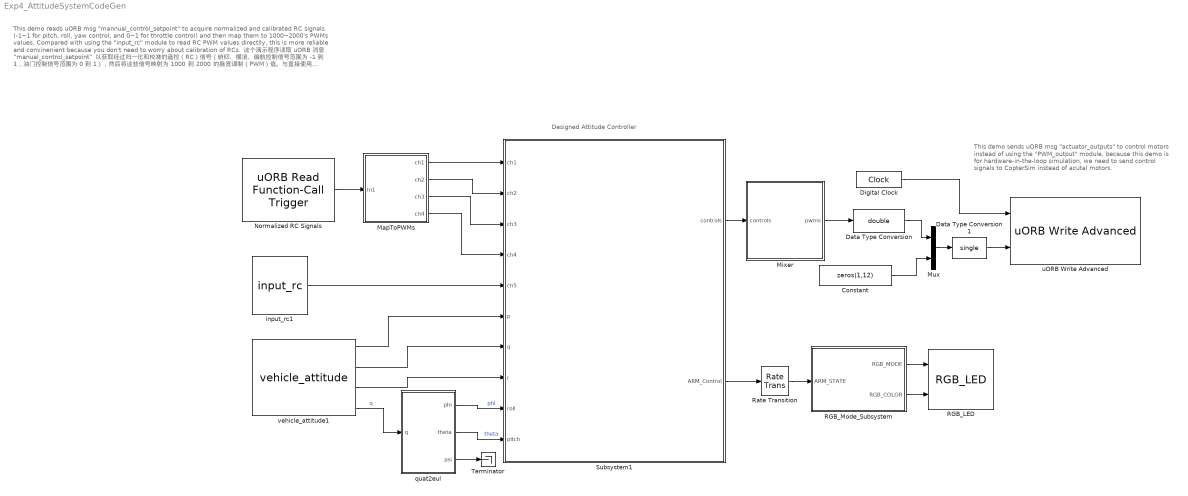
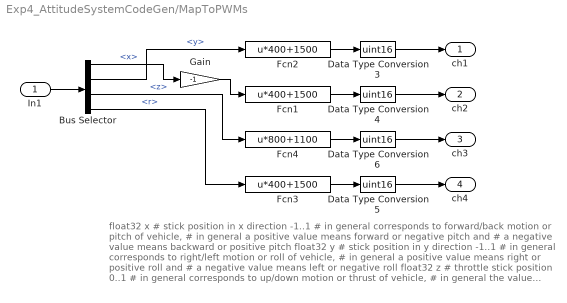
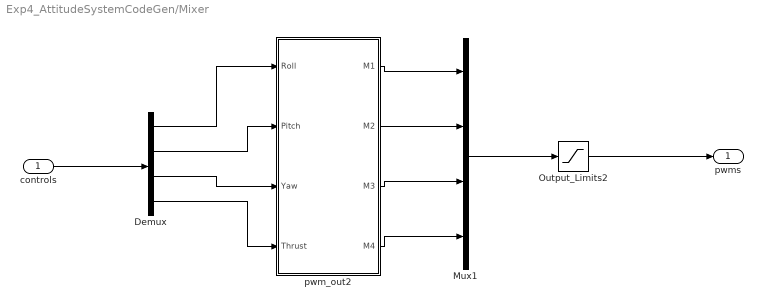
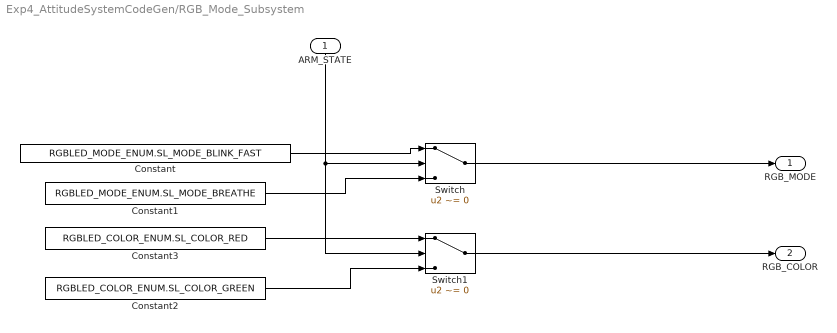
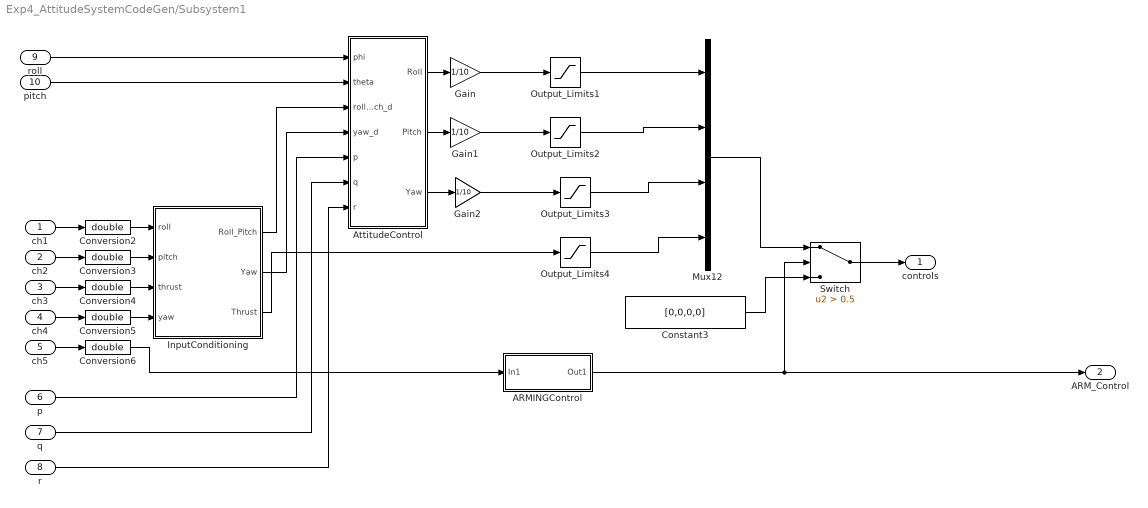
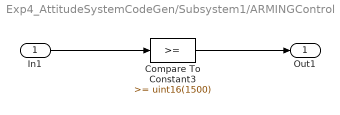
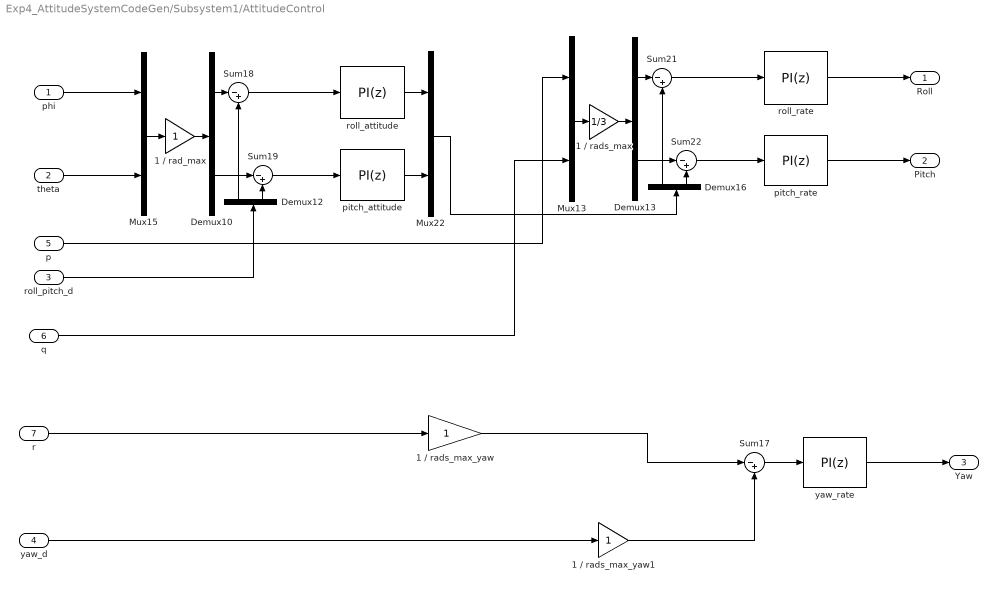
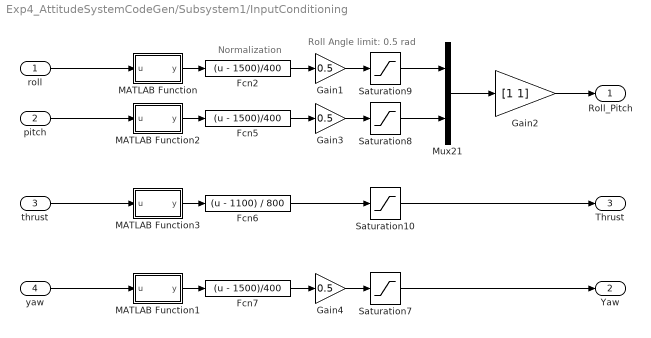
== matlab function Exp4_AttitudeSystemCodeGen/Mixer/pwm_out2 ==
function [M1, M2, M3, M4] = motor_mixer(Roll, Pitch, Yaw, Thrust)

idle_PWM = 1000;

% Quad XROLL （根据QP里面的叉字形结构的文字）
% M1 = ((Pitch+ Yaw)+Thrust-Roll) * 1000 + idle_PWM;
 %M2 = ((Pitch - Yaw)+Thrust+Roll) * 1000 + idle_PWM;
 %M3 = ((Roll +Yaw) + Thrust-Pitch) * 1000 + idle_PWM;
 %M4 = ((-Roll - Pitch-Yaw) + Thrust) * 1000 + idle_PWM;
% M5 = 1000;
% M6 = 1000;
% M7 = 1000;
% M8 = 1000;
%qp上实际的输出
M1 = (Thrust+Pitch-Roll+Yaw) * 1000 + idle_PWM;
 M2 = (Thrust-Pitch +Roll+Yaw) * 1000 + idle_PWM;
 M3 = ( Thrust+Roll+Pitch-Yaw) * 1000 + idle_PWM;
 M4 = (Thrust-Roll- Pitch -Yaw) * 1000 + idle_PWM;
% Quad +
 %M1 = ((Pitch - Yaw) * Thrust / 2 + Thrust) * 1000 + idle_PWM;
 %M2 = ((-Roll + Yaw) * Thrust / 2 + Thrust) * 1000 + idle_PWM;
% M3 = ((-Pitch - Yaw) * Thrust / 2 + Thrust) * 1000 + idle_PWM;
 %M4 = ((Roll + Yaw) * Thrust / 2 + Thrust) * 1000 + idle_PWM;
% M5 = 1000;
% M6 = 1000;
% M7 = 1000;
% M8 = 1000;

% Hex X
% M1 = ((Pitch + Roll / 2 - Yaw) * Thrust / 2 + Thrust) * 1000 + idle_PWM;
% M2 = ((Pitch - Roll / 2 + Yaw) * Thrust / 2 + Thrust) * 1000 + idle_PWM;
% M3 = ((-Roll - Yaw) * Thrust / 2 + Thrust) * 1000 + idle_PWM;
% M4 = ((-Pitch - Roll / 2 + Yaw) * Thrust / 2 + Thrust) * 1000 + idle_PWM;
% M5 = ((-Pitch + Roll / 2 - Yaw) * Thrust / 2 + Thrust) * 1000 + idle_PWM;
% M6 = ((Roll + Yaw) * Thrust / 2 + Thrust) * 1000 + idle_PWM;
% M7 = 1000;
% M8 = 1000;

% Hex X (From Adam)
%M1 = uint16(single(((-Roll - Yaw) * Thrust / 3 + Thrust) * single(1000))) + idle_PWM;
%M2 = uint16(single(((Roll + Yaw) * Thrust / 3 + Thrust) * single(1000))) + idle_PWM;
%M3 = uint16(single(((Pitch + (Roll / 2) - Yaw) * Thrust / 3 + Thrust) * single(1000))) + idle_PWM;
%M4 = uint16(single(((-Pitch - (Roll / 2) + Yaw) * Thrust / 3 + Thrust) * single(1000))) + idle_PWM;
%M5 = uint16(single(((Pitch - (Roll / 2) + Yaw) * Thrust / 3 + Thrust) * single(1000))) + idle_PWM;
%M6 = uint16(single(((-Pitch + (Roll / 2) - Yaw) * Thrust / 3 + Thrust) * single(1000))) + idle_PWM;

% Hex X (Version 2)
% Roll/Yaw
% M1 = ((-Roll - Yaw) * Thrust / 2 + Thrust) * 1000 + idle_PWM;
% M2 = ((Roll + Yaw) * Thrust / 2 + Thrust) * 1000 + idle_PWM;
% % + Pitch/Roll
% M6 = ((Pitch + Roll / 2 - Yaw) * Thrust / 2 + Thrust) * 1000 + idle_PWM;
% M4 = ((Pitch - Roll / 2 + Yaw) * Thrust / 2 + Thrust) * 1000 + idle_PWM;
% % - Pitch/Roll
% M5 = ((-Pitch - Roll / 2 + Yaw) * Thrust / 2 + Thrust) * 1000 + idle_PWM;
% M3 = ((-Pitch + Roll / 2 - Yaw) * Thrust / 2 + Thrust) * 1000 + idle_PWM;

== matlab function Exp4_AttitudeSystemCodeGen/Subsystem1/InputConditioning/MATLAB Function ==
function y = fcn(u)
%将遥控输入的范围控制在1100~1900，同时设置一个死区，死区大小为±deadZone
RCMin = 1100;
RCMax = 1900;
deadZoneRate = 0.05;
deadZone = deadZoneRate*(RCMax-RCMin);
%限幅
if(u < RCMin)
    u = RCMin;
elseif(u > RCMax)
    u = RCMax;
end
%死区
 if(u > 1500+deadZone)
    y = u;
 elseif(u < 1500-deadZone)
     y = u;
 else
     y = 1500;
 end
     
 end

== matlab function Exp4_AttitudeSystemCodeGen/Subsystem1/InputConditioning/MATLAB Function1 ==
function y = fcn(u)
%将遥控输入的范围控制在1100~1900，同时设置一个死区，死区大小为±deadZone
RCMin = 1100;
RCMax = 1900;
deadZoneRate = 0.05;
deadZone = deadZoneRate*(RCMax-RCMin);
%限幅
if(u < RCMin)
    u = RCMin;
elseif(u > RCMax)
    u = RCMax;
end
%死区
 if(u > 1500+deadZone)
    y = u;
 elseif(u < 1500-deadZone)
     y = u;
 else
     y = 1500;
 end
     
 end

== matlab function Exp4_AttitudeSystemCodeGen/Subsystem1/InputConditioning/MATLAB Function2 ==
function y = fcn(u)
%将遥控输入的范围控制在1100~1900，同时设置一个死区，死区大小为±deadZone
RCMin = 1100;
RCMax = 1900;
deadZoneRate = 0.05;
deadZone = deadZoneRate*(RCMax-RCMin);
%限幅
if(u < RCMin)
    u = RCMin;
elseif(u > RCMax)
    u = RCMax;
end
%死区
 if(u > 1500+deadZone)
    y = u;
 elseif(u < 1500-deadZone)
     y = u;
 else
     y = 1500;
 end
     
 end

== matlab function Exp4_AttitudeSystemCodeGen/Subsystem1/InputConditioning/MATLAB Function3 ==
function y = fcn(u)
%将遥控输入的范围控制在1100~1900，同时设置一个死区，死区大小为±deadZone
RCMin = 1100;
RCMax = 1900;
deadZoneRate = 0.05;
deadZone = deadZoneRate*(RCMax-RCMin);
%限幅
if(u < RCMin)
    u = RCMin;
elseif(u > RCMax)
    u = RCMax;
end
%死区
 if(u > 1500+deadZone)
    y = u;
 elseif(u < 1500-deadZone)
     y = u;
 else
     y = 1500;
 end
     
 end

== matlab function Exp4_AttitudeSystemCodeGen/quat2eul ==
function [phi,theta,psi] = quat2eul(q)
% Conversion from Quaternion to Euler angles based on the PX4 Firmware
% v1.6.5 release.
% 
% Quaternion -> DCM -> Euler Angles
% INPUT:
%   q: Quaternion vector of the format: (a + bi + cj + dk)
% OUTPUT:
%   [phi,theta,psi]: Euler angles in radians.
% 
 
    a = q(1);
    b = q(2);
    c = q(3);
    d = q(4);

    aSq = a*a;
    bSq = b*b;
    cSq = c*c;
    dSq = d*d;

    d_pi2 = pi/2;

    % quaternion_to_dcm
    dcm00 = aSq + bSq - cSq - dSq;
    % dcm01 = 2*(b*c - a*d);
    dcm02 = 2*(a*c + b*d);
    dcm10 = 2*(b*c + a*d);
    % dcm11 = aSq - bSq + cSq - dSq;
    dcm12 = 2*(c*d - a*b);
    dcm20 = 2*(b*d - a*c);
    dcm21 = 2*(a*b + c*d);
    dcm22 = aSq - bSq - cSq + dSq;

    % dcm_to_euler
    theta = asin(-dcm20);
    if abs(theta - d_pi2) < 1.0e-3
        phi = single(0.0);
        psi = atan2(dcm12, dcm02);
    elseif abs(theta + d_pi2) < 1.0e-3
        phi = single(0.0);
        psi = atan2(-dcm12, -dcm02);
    else
        phi = atan2(dcm21, dcm22);
        psi = atan2(dcm10, dcm00);
    end

end

/*
 * File: Exp4_AttitudeSystemCodeGen.c
 *
 * Code generated for Simulink model 'Exp4_AttitudeSystemCodeGen'.
 *
 * Model version                  : 10.0
 * Simulink Coder version         : 9.7 (R2022a) 13-Nov-2021
 * C/C++ source code generated on : Thu Jan 23 10:38:07 2025
 *
 * Target selection: ert.tlc
 * Embedded hardware selection: ARM Compatible->ARM Cortex
 * Code generation objectives: Unspecified
 * Validation result: Not run
 */

#include "Exp4_AttitudeSystemCodeGen.h"
#include "rtwtypes.h"
#include "Exp4_AttitudeSystemCodeGen_private.h"
#include <math.h>
#include "rt_nonfinite.h"
#include "Exp4_AttitudeSystemCodeGen_types.h"
#include "rt_defines.h"

/* Block signals (default storage) */
B_Exp4_AttitudeSystemCodeGen_T Exp4_AttitudeSystemCodeGen_B;

/* Block states (default storage) */
DW_Exp4_AttitudeSystemCodeGen_T Exp4_AttitudeSystemCodeGen_DW;

/* Real-time model */
static RT_MODEL_Exp4_AttitudeSystemC_T Exp4_AttitudeSystemCodeGen_M_;
RT_MODEL_Exp4_AttitudeSystemC_T *const Exp4_AttitudeSystemCodeGen_M =
  &Exp4_AttitudeSystemCodeGen_M_;
static void rate_scheduler(void);

/*
 *         This function updates active task flag for each subrate.
 *         The function is called at model base rate, hence the
 *         generated code self-manages all its subrates.
 */
static void rate_scheduler(void)
{
  /* Compute which subrates run during the next base time step.  Subrates
   * are an integer multiple of the base rate counter.  Therefore, the subtask
   * counter is reset when it reaches its limit (zero means run).
   */
  (Exp4_AttitudeSystemCodeGen_M->Timing.TaskCounters.TID[1])++;
  if ((Exp4_AttitudeSystemCodeGen_M->Timing.TaskCounters.TID[1]) > 249) {/* Sample time: [1.0s, 0.0s] */
    Exp4_AttitudeSystemCodeGen_M->Timing.TaskCounters.TID[1] = 0;
  }
}

/*
 * Output and update for atomic system:
 *    '<S9>/MATLAB Function1'
 *    '<S9>/MATLAB Function2'
 *    '<S9>/MATLAB Function3'
 */
void Exp4_AttitudeSy_MATLABFunction1(real_T rtu_u,
  B_MATLABFunction1_Exp4_Attitu_T *localB)
{
  real_T u;
  u = rtu_u;

  /* MATLAB Function 'Subsystem1/InputConditioning/MATLAB Function1': '<S257>:1' */
  /* '<S257>:1:3' */
  /* '<S257>:1:4' */
  /* '<S257>:1:5' */
  /* '<S257>:1:6' */
  if (rtu_u < 1100.0) {
    /* '<S257>:1:8' */
    /* '<S257>:1:9' */
    u = 1100.0;
  } else if (rtu_u > 1900.0) {
    /* '<S257>:1:10' */
    /* '<S257>:1:11' */
    u = 1900.0;
  }

  if (u > 1540.0) {
    /* '<S257>:1:14' */
    /* '<S257>:1:15' */
    localB->y = u;
  } else if (u < 1460.0) {
    /* '<S257>:1:16' */
    /* '<S257>:1:17' */
    localB->y = u;
  } else {
    /* '<S257>:1:19' */
    localB->y = 1500.0;
  }
}

real32_T rt_atan2f_snf(real32_T u0, real32_T u1)
{
  int32_T u0_0;
  int32_T u1_0;
  real32_T y;
  if (rtIsNaNF(u0) || rtIsNaNF(u1)) {
    y = (rtNaNF);
  } else if (rtIsInfF(u0) && rtIsInfF(u1)) {
    if (u0 > 0.0F) {
      u0_0 = 1;
    } else {
      u0_0 = -1;
    }

    if (u1 > 0.0F) {
      u1_0 = 1;
    } else {
      u1_0 = -1;
    }

    y = (real32_T)atan2((real32_T)u0_0, (real32_T)u1_0);
  } else if (u1 == 0.0F) {
    if (u0 > 0.0F) {
      y = RT_PIF / 2.0F;
    } else if (u0 < 0.0F) {
      y = -(RT_PIF / 2.0F);
    } else {
      y = 0.0F;
    }
  } else {
    y = (real32_T)atan2(u0, u1);
  }

  return y;
}

/* Model step function */
void Exp4_AttitudeSystemCodeGen_step(void)
{
  real_T rtb_Switch_idx_2;
  real_T rtb_Switch_idx_3;
  real_T u0;
  int32_T i;
  real32_T rtb_phi;
  real32_T theta;
  real32_T tmp;
  uint16_T rtb_DataTypeConversion6;
  boolean_T rtb_Compare;

  /* S-Function (sfun_px4_input_rc): '<Root>/input_rc1' */
  {
    bool updated;
    orb_check(Exp4_AttitudeSystemCodeGen_DW.input_rc1_input_rc_fd.fd, &updated);
    if (updated) {
      struct input_rc_s pwm_inputs;

      /* copy input_rc raw data into local buffer (uint16)*/
      orb_copy(ORB_ID(input_rc),
               Exp4_AttitudeSystemCodeGen_DW.input_rc1_input_rc_fd.fd,
               &pwm_inputs);
      Exp4_AttitudeSystemCodeGen_B.input_rc1 = pwm_inputs.values[4];
    }
  }

  /* RelationalOperator: '<S10>/Compare' incorporates:
   *  Constant: '<S10>/Constant'
   *  DataTypeConversion: '<S4>/Conversion6'
   */
  rtb_Compare = (Exp4_AttitudeSystemCodeGen_B.input_rc1 >= 1500);

  /* RateTransition: '<Root>/Rate Transition' */
  if (Exp4_AttitudeSystemCodeGen_M->Timing.TaskCounters.TID[1] == 0) {
    /* Switch: '<S3>/Switch' incorporates:
     *  Switch: '<S3>/Switch1'
     */
    if (rtb_Compare) {
      /* Switch: '<S3>/Switch' incorporates:
       *  Constant: '<S3>/Constant'
       */
      Exp4_AttitudeSystemCodeGen_B.Switch = SL_MODE_BLINK_FAST;

      /* Switch: '<S3>/Switch1' incorporates:
       *  Constant: '<S3>/Constant3'
       */
      Exp4_AttitudeSystemCodeGen_B.Switch1 = SL_COLOR_RED;
    } else {
      /* Switch: '<S3>/Switch' incorporates:
       *  Constant: '<S3>/Constant1'
       */
      Exp4_AttitudeSystemCodeGen_B.Switch = SL_MODE_BREATHE;

      /* Switch: '<S3>/Switch1' incorporates:
       *  Constant: '<S3>/Constant2'
       */
      Exp4_AttitudeSystemCodeGen_B.Switch1 = SL_COLOR_GREEN;
    }

    /* End of Switch: '<S3>/Switch' */

    /* S-Function (sfun_px4_rgbled): '<Root>/RGB_LED' */
    Exp4_AttitudeSystemCodeGen_DW.RGB_LED_sl_led_control_s.mode =
      Exp4_AttitudeSystemCodeGen_B.Switch;
    Exp4_AttitudeSystemCodeGen_DW.RGB_LED_sl_led_control_s.color =
      Exp4_AttitudeSystemCodeGen_B.Switch1;
    Exp4_AttitudeSystemCodeGen_DW.RGB_LED_sl_led_control_s.num_blinks = 0;
    Exp4_AttitudeSystemCodeGen_DW.RGB_LED_sl_led_control_s.priority = 0;
    Exp4_AttitudeSystemCodeGen_DW.RGB_LED_sl_led_control_s.timestamp =
      hrt_absolute_time();
    orb_publish(ORB_ID(led_control),
                Exp4_AttitudeSystemCodeGen_DW.RGB_LED_orb_advert_t ,
                &Exp4_AttitudeSystemCodeGen_DW.RGB_LED_sl_led_control_s);
  }

  /* End of RateTransition: '<Root>/Rate Transition' */

  /* S-Function (sfun_px4_uorb_write): '<Root>/uORB Write Advanced' */
  {
    //struct actuator_outputs_s InputStruct;
    //memset( &InputStruct, 0, sizeof(InputStruct));

    /* assign input parameters to struct */
    Exp4_AttitudeSystemCodeGen_DW.uORBWriteAdvanced_uorb_msg.timestamp = (double)
      Exp4_AttitudeSystemCodeGen_B.DigitalClock;
    Exp4_AttitudeSystemCodeGen_DW.uORBWriteAdvanced_uorb_msg.output[0] =
      Exp4_AttitudeSystemCodeGen_B.DataTypeConversion1[0];
    Exp4_AttitudeSystemCodeGen_DW.uORBWriteAdvanced_uorb_msg.output[1] =
      Exp4_AttitudeSystemCodeGen_B.DataTypeConversion1[1];
    Exp4_AttitudeSystemCodeGen_DW.uORBWriteAdvanced_uorb_msg.output[2] =
      Exp4_AttitudeSystemCodeGen_B.DataTypeConversion1[2];
    Exp4_AttitudeSystemCodeGen_DW.uORBWriteAdvanced_uorb_msg.output[3] =
      Exp4_AttitudeSystemCodeGen_B.DataTypeConversion1[3];
    Exp4_AttitudeSystemCodeGen_DW.uORBWriteAdvanced_uorb_msg.output[4] =
      Exp4_AttitudeSystemCodeGen_B.DataTypeConversion1[4];
    Exp4_AttitudeSystemCodeGen_DW.uORBWriteAdvanced_uorb_msg.output[5] =
      Exp4_AttitudeSystemCodeGen_B.DataTypeConversion1[5];
    Exp4_AttitudeSystemCodeGen_DW.uORBWriteAdvanced_uorb_msg.output[6] =
      Exp4_AttitudeSystemCodeGen_B.DataTypeConversion1[6];
    Exp4_AttitudeSystemCodeGen_DW.uORBWriteAdvanced_uorb_msg.output[7] =
      Exp4_AttitudeSystemCodeGen_B.DataTypeConversion1[7];
    Exp4_AttitudeSystemCodeGen_DW.uORBWriteAdvanced_uorb_msg.output[8] =
      Exp4_AttitudeSystemCodeGen_B.DataTypeConversion1[8];
    Exp4_AttitudeSystemCodeGen_DW.uORBWriteAdvanced_uorb_msg.output[9] =
      Exp4_AttitudeSystemCodeGen_B.DataTypeConversion1[9];
    Exp4_AttitudeSystemCodeGen_DW.uORBWriteAdvanced_uorb_msg.output[10] =
      Exp4_AttitudeSystemCodeGen_B.DataTypeConversion1[10];
    Exp4_AttitudeSystemCodeGen_DW.uORBWriteAdvanced_uorb_msg.output[11] =
      Exp4_AttitudeSystemCodeGen_B.DataTypeConversion1[11];
    Exp4_AttitudeSystemCodeGen_DW.uORBWriteAdvanced_uorb_msg.output[12] =
      Exp4_AttitudeSystemCodeGen_B.DataTypeConversion1[12];
    Exp4_AttitudeSystemCodeGen_DW.uORBWriteAdvanced_uorb_msg.output[13] =
      Exp4_AttitudeSystemCodeGen_B.DataTypeConversion1[13];
    Exp4_AttitudeSystemCodeGen_DW.uORBWriteAdvanced_uorb_msg.output[14] =
      Exp4_AttitudeSystemCodeGen_B.DataTypeConversion1[14];
    Exp4_AttitudeSystemCodeGen_DW.uORBWriteAdvanced_uorb_msg.output[15] =
      Exp4_AttitudeSystemCodeGen_B.DataTypeConversion1[15];

    /* Publish data for subscribers */
    orb_publish(ORB_ID(actuator_outputs_rfly),
                Exp4_AttitudeSystemCodeGen_DW.uORBWriteAdvanced_uorb_advert,
                &Exp4_AttitudeSystemCodeGen_DW.uORBWriteAdvanced_uorb_msg);
  }

  /* S-Function (sfun_px4_vehicle_attitude): '<Root>/vehicle_attitude1' */
  {
    bool updated;
    orb_check(Exp4_AttitudeSystemCodeGen_DW.vehicle_attitude1_angrad_fd.fd,
              &updated);
    if (updated) {
      struct vehicle_angular_velocity_s raw;
      orb_copy(ORB_ID(vehicle_angular_velocity),
               Exp4_AttitudeSystemCodeGen_DW.vehicle_attitude1_angrad_fd.fd,
               &raw);

      /* read out the Roll rate value */
      Exp4_AttitudeSystemCodeGen_B.vehicle_attitude1_o1 = raw.xyz[0];// phi rate

      /* read out the Pitch rate value */
      Exp4_AttitudeSystemCodeGen_B.vehicle_attitude1_o2 = raw.xyz[1];// theta rate

      /* read out the Yaw rate value */
      Exp4_AttitudeSystemCodeGen_B.vehicle_attitude1_o3 = raw.xyz[2];// psi rate
    }

    orb_check(Exp4_AttitudeSystemCodeGen_DW.vehicle_attitude1_angeuler_fd.fd,
              &updated);
    if (updated) {
      struct vehicle_attitude_s raw;
      orb_copy(ORB_ID(vehicle_attitude),
               Exp4_AttitudeSystemCodeGen_DW.vehicle_attitude1_angeuler_fd.fd,
               &raw);

      /* read out the Quaternion values */
      Exp4_AttitudeSystemCodeGen_B.q[0] = raw.q[0];
      Exp4_AttitudeSystemCodeGen_B.q[1] = raw.q[1];
      Exp4_AttitudeSystemCodeGen_B.q[2] = raw.q[2];
      Exp4_AttitudeSystemCodeGen_B.q[3] = raw.q[3];
    }
  }

  /* MATLAB Function: '<Root>/quat2eul' */
  /* MATLAB Function 'quat2eul': '<S5>:1' */
  /* '<S5>:1:12' */
  /* '<S5>:1:13' */
  /* '<S5>:1:14' */
  /* '<S5>:1:15' */
  /* '<S5>:1:17' */
  /* '<S5>:1:18' */
  /* '<S5>:1:19' */
  /* '<S5>:1:20' */
  /* '<S5>:1:22' */
  /* '<S5>:1:25' */
  /* '<S5>:1:27' */
  /* '<S5>:1:28' */
  /* '<S5>:1:30' */
  /* '<S5>:1:31' */
  /* '<S5>:1:32' */
  /* '<S5>:1:33' */
  /* '<S5>:1:36' */
  theta = (real32_T)asin(-((Exp4_AttitudeSystemCodeGen_B.q[1] *
    Exp4_AttitudeSystemCodeGen_B.q[3] - Exp4_AttitudeSystemCodeGen_B.q[0] *
    Exp4_AttitudeSystemCodeGen_B.q[2]) * 2.0F));
  if ((real32_T)fabs(theta - 1.57079637F) < 0.001) {
    /* '<S5>:1:37' */
    /* '<S5>:1:38' */
    rtb_phi = 0.0F;

    /* '<S5>:1:39' */
  } else if ((real32_T)fabs(theta + 1.57079637F) < 0.001) {
    /* '<S5>:1:40' */
    /* '<S5>:1:41' */
    rtb_phi = 0.0F;

    /* '<S5>:1:42' */
  } else {
    /* '<S5>:1:44' */
    rtb_phi = rt_atan2f_snf((Exp4_AttitudeSystemCodeGen_B.q[0] *
      Exp4_AttitudeSystemCodeGen_B.q[1] + Exp4_AttitudeSystemCodeGen_B.q[2] *
      Exp4_AttitudeSystemCodeGen_B.q[3]) * 2.0F,
      ((Exp4_AttitudeSystemCodeGen_B.q[0] * Exp4_AttitudeSystemCodeGen_B.q[0] -
        Exp4_AttitudeSystemCodeGen_B.q[1] * Exp4_AttitudeSystemCodeGen_B.q[1]) -
       Exp4_AttitudeSystemCodeGen_B.q[2] * Exp4_AttitudeSystemCodeGen_B.q[2]) +
      Exp4_AttitudeSystemCodeGen_B.q[3] * Exp4_AttitudeSystemCodeGen_B.q[3]);

    /* '<S5>:1:45' */
  }

  /* S-Function (sfun_px4_uorb_read_topic): '<Root>/Normalized RC Signals' */
  {
    //interval val: 1
    bool updated;
    orb_check(Exp4_AttitudeSystemCodeGen_DW.NormalizedRCSignals_uORB_fd.fd,
              &updated);
    if (updated) {
      /* obtained uorb data */
      /* copy sensors raw data into local buffer */
      orb_copy(ORB_ID(manual_control_setpoint),
               Exp4_AttitudeSystemCodeGen_DW.NormalizedRCSignals_uORB_fd.fd,
               &Exp4_AttitudeSystemCodeGen_B.NormalizedRCSignals);
    }
  }

  /* DataTypeConversion: '<S1>/Data Type Conversion3' incorporates:
   *  Fcn: '<S1>/Fcn2'
   */
  tmp = (real32_T)floor(Exp4_AttitudeSystemCodeGen_B.NormalizedRCSignals.y *
                        400.0F + 1500.0F);
  if (rtIsNaNF(tmp) || rtIsInfF(tmp)) {
    tmp = 0.0F;
  } else {
    tmp = (real32_T)fmod(tmp, 65536.0);
  }

  rtb_DataTypeConversion6 = (uint16_T)(tmp < 0.0F ? (int32_T)(uint16_T)-(int16_T)
    (uint16_T)-tmp : (int32_T)(uint16_T)tmp);

  /* End of DataTypeConversion: '<S1>/Data Type Conversion3' */

  /* MATLAB Function: '<S9>/MATLAB Function' incorporates:
   *  DataTypeConversion: '<S4>/Conversion2'
   */
  Exp4_AttitudeSystemCodeGen_B.y = rtb_DataTypeConversion6;

  /* MATLAB Function 'Subsystem1/InputConditioning/MATLAB Function': '<S256>:1' */
  /* '<S256>:1:3' */
  /* '<S256>:1:4' */
  /* '<S256>:1:5' */
  /* '<S256>:1:6' */
  if (rtb_DataTypeConversion6 < 1100) {
    /* '<S256>:1:8' */
    /* '<S256>:1:9' */
    Exp4_AttitudeSystemCodeGen_B.y = 1100.0;
  } else if (rtb_DataTypeConversion6 > 1900) {
    /* '<S256>:1:10' */
    /* '<S256>:1:11' */
    Exp4_AttitudeSystemCodeGen_B.y = 1900.0;
  }

  if ((!(Exp4_AttitudeSystemCodeGen_B.y > 1540.0)) &&
      (!(Exp4_AttitudeSystemCodeGen_B.y < 1460.0))) {
    /* '<S256>:1:19' */
    Exp4_AttitudeSystemCodeGen_B.y = 1500.0;
  } else {
    /* '<S256>:1:14' */
    /* '<S256>:1:15' */
    /* '<S256>:1:16' */
    /* '<S256>:1:17' */
  }

  /* End of MATLAB Function: '<S9>/MATLAB Function' */

  /* Gain: '<S9>/Gain1' incorporates:
   *  Fcn: '<S9>/Fcn2'
   */
  u0 = (Exp4_AttitudeSystemCodeGen_B.y - 1500.0) / 400.0 * 0.5;

  /* Saturate: '<S9>/Saturation9' */
  if (u0 > 1.0) {
    u0 = 1.0;
  } else if (u0 < -1.0) {
    u0 = -1.0;
  }

  /* End of Saturate: '<S9>/Saturation9' */

  /* Sum: '<S8>/Sum18' */
  Exp4_AttitudeSystemCodeGen_B.y = u0 - rtb_phi;

  /* Sum: '<S152>/Sum' incorporates:
   *  DiscreteIntegrator: '<S143>/Integrator'
   *  Gain: '<S148>/Proportional Gain'
   */
  Exp4_AttitudeSystemCodeGen_B.Sum = 0.5251155209314009 *
    Exp4_AttitudeSystemCodeGen_B.y +
    Exp4_AttitudeSystemCodeGen_DW.Integrator_DSTATE;

  /* Saturate: '<S150>/Saturation' */
  if (Exp4_AttitudeSystemCodeGen_B.Sum > 1.0) {
    Exp4_AttitudeSystemCodeGen_B.Saturation_o = 1.0;
  } else if (Exp4_AttitudeSystemCodeGen_B.Sum < -1.0) {
    Exp4_AttitudeSystemCodeGen_B.Saturation_o = -1.0;
  } else {
    Exp4_AttitudeSystemCodeGen_B.Saturation_o = Exp4_AttitudeSystemCodeGen_B.Sum;
  }

  /* End of Saturate: '<S150>/Saturation' */

  /* Sum: '<S8>/Sum21' incorporates:
   *  Gain: '<S8>/1 // rads_max'
   */
  Exp4_AttitudeSystemCodeGen_B.Sum21 = Exp4_AttitudeSystemCodeGen_B.Saturation_o
    - 0.333333343F * Exp4_AttitudeSystemCodeGen_B.vehicle_attitude1_o1;

  /* Sum: '<S200>/Sum' incorporates:
   *  DiscreteIntegrator: '<S191>/Integrator'
   *  Gain: '<S196>/Proportional Gain'
   */
  Exp4_AttitudeSystemCodeGen_B.Sum_n = 1.0961153046948584 *
    Exp4_AttitudeSystemCodeGen_B.Sum21 +
    Exp4_AttitudeSystemCodeGen_DW.Integrator_DSTATE_d;

  /* Saturate: '<S198>/Saturation' */
  if (Exp4_AttitudeSystemCodeGen_B.Sum_n > 1.0) {
    Exp4_AttitudeSystemCodeGen_B.Saturation = 1.0;
  } else if (Exp4_AttitudeSystemCodeGen_B.Sum_n < -1.0) {
    Exp4_AttitudeSystemCodeGen_B.Saturation = -1.0;
  } else {
    Exp4_AttitudeSystemCodeGen_B.Saturation = Exp4_AttitudeSystemCodeGen_B.Sum_n;
  }

  /* End of Saturate: '<S198>/Saturation' */

  /* DataTypeConversion: '<S1>/Data Type Conversion4' incorporates:
   *  Fcn: '<S1>/Fcn1'
   *  Gain: '<S1>/Gain'
   */
  tmp = (real32_T)floor(-Exp4_AttitudeSystemCodeGen_B.NormalizedRCSignals.x *
                        400.0F + 1500.0F);
  if (rtIsNaNF(tmp) || rtIsInfF(tmp)) {
    tmp = 0.0F;
  } else {
    tmp = (real32_T)fmod(tmp, 65536.0);
  }

  /* MATLAB Function: '<S9>/MATLAB Function2' incorporates:
   *  DataTypeConversion: '<S1>/Data Type Conversion4'
   *  DataTypeConversion: '<S4>/Conversion3'
   */
  Exp4_AttitudeSy_MATLABFunction1((real_T)(tmp < 0.0F ? (int32_T)(uint16_T)
    -(int16_T)(uint16_T)-tmp : (int32_T)(uint16_T)tmp),
    &Exp4_AttitudeSystemCodeGen_B.sf_MATLABFunction2);

  /* Gain: '<S9>/Gain3' incorporates:
   *  Fcn: '<S9>/Fcn5'
   */
  u0 = (Exp4_AttitudeSystemCodeGen_B.sf_MATLABFunction2.y - 1500.0) / 400.0 *
    0.5;

  /* Saturate: '<S9>/Saturation8' */
  if (u0 > 1.0) {
    u0 = 1.0;
  } else if (u0 < -1.0) {
    u0 = -1.0;
  }

  /* End of Saturate: '<S9>/Saturation8' */

  /* Sum: '<S8>/Sum19' incorporates:
   *  MATLAB Function: '<Root>/quat2eul'
   */
  Exp4_AttitudeSystemCodeGen_B.Sum19 = u0 - theta;

  /* Sum: '<S56>/Sum' incorporates:
   *  DiscreteIntegrator: '<S47>/Integrator'
   *  Gain: '<S52>/Proportional Gain'
   */
  Exp4_AttitudeSystemCodeGen_B.Sum_l = 0.5251155209314009 *
    Exp4_AttitudeSystemCodeGen_B.Sum19 +
    Exp4_AttitudeSystemCodeGen_DW.Integrator_DSTATE_a;

  /* Saturate: '<S54>/Saturation' */
  if (Exp4_AttitudeSystemCodeGen_B.Sum_l > 1.0) {
    Exp4_AttitudeSystemCodeGen_B.Saturation_p = 1.0;
  } else if (Exp4_AttitudeSystemCodeGen_B.Sum_l < -1.0) {
    Exp4_AttitudeSystemCodeGen_B.Saturation_p = -1.0;
  } else {
    Exp4_AttitudeSystemCodeGen_B.Saturation_p =
      Exp4_AttitudeSystemCodeGen_B.Sum_l;
  }

  /* End of Saturate: '<S54>/Saturation' */

  /* Sum: '<S8>/Sum22' incorporates:
   *  Gain: '<S8>/1 // rads_max'
   */
  Exp4_AttitudeSystemCodeGen_B.Sum22 = Exp4_AttitudeSystemCodeGen_B.Saturation_p
    - 0.333333343F * Exp4_AttitudeSystemCodeGen_B.vehicle_attitude1_o2;

  /* Sum: '<S104>/Sum' incorporates:
   *  DiscreteIntegrator: '<S95>/Integrator'
   *  Gain: '<S100>/Proportional Gain'
   */
  Exp4_AttitudeSystemCodeGen_B.Sum_c = 1.0961153046948584 *
    Exp4_AttitudeSystemCodeGen_B.Sum22 +
    Exp4_AttitudeSystemCodeGen_DW.Integrator_DSTATE_n;

  /* Saturate: '<S102>/Saturation' */
  if (Exp4_AttitudeSystemCodeGen_B.Sum_c > 1.0) {
    Exp4_AttitudeSystemCodeGen_B.Saturation_a = 1.0;
  } else if (Exp4_AttitudeSystemCodeGen_B.Sum_c < -1.0) {
    Exp4_AttitudeSystemCodeGen_B.Saturation_a = -1.0;
  } else {
    Exp4_AttitudeSystemCodeGen_B.Saturation_a =
      Exp4_AttitudeSystemCodeGen_B.Sum_c;
  }

  /* End of Saturate: '<S102>/Saturation' */

  /* DataTypeConversion: '<S1>/Data Type Conversion5' incorporates:
   *  Fcn: '<S1>/Fcn3'
   */
  tmp = (real32_T)floor(Exp4_AttitudeSystemCodeGen_B.NormalizedRCSignals.r *
                        400.0F + 1500.0F);
  if (rtIsNaNF(tmp) || rtIsInfF(tmp)) {
    tmp = 0.0F;
  } else {
    tmp = (real32_T)fmod(tmp, 65536.0);
  }

  /* MATLAB Function: '<S9>/MATLAB Function1' incorporates:
   *  DataTypeConversion: '<S1>/Data Type Conversion5'
   *  DataTypeConversion: '<S4>/Conversion5'
   */
  Exp4_AttitudeSy_MATLABFunction1((real_T)(tmp < 0.0F ? (int32_T)(uint16_T)
    -(int16_T)(uint16_T)-tmp : (int32_T)(uint16_T)tmp),
    &Exp4_AttitudeSystemCodeGen_B.sf_MATLABFunction1);

  /* Gain: '<S9>/Gain4' incorporates:
   *  Fcn: '<S9>/Fcn7'
   */
  u0 = (Exp4_AttitudeSystemCodeGen_B.sf_MATLABFunction1.y - 1500.0) / 400.0 *
    0.5;

  /* Saturate: '<S9>/Saturation7' */
  if (u0 > 1.0) {
    u0 = 1.0;
  } else if (u0 < -1.0) {
    u0 = -1.0;
  }

  /* End of Saturate: '<S9>/Saturation7' */

  /* Sum: '<S8>/Sum17' */
  Exp4_AttitudeSystemCodeGen_B.Sum17 = u0 -
    Exp4_AttitudeSystemCodeGen_B.vehicle_attitude1_o3;

  /* Sum: '<S248>/Sum' incorporates:
   *  DiscreteIntegrator: '<S239>/Integrator'
   *  Gain: '<S244>/Proportional Gain'
   */
  Exp4_AttitudeSystemCodeGen_B.Sum_i = 2.1922306093897168 *
    Exp4_AttitudeSystemCodeGen_B.Sum17 +
    Exp4_AttitudeSystemCodeGen_DW.Integrator_DSTATE_nu;

  /* Saturate: '<S246>/Saturation' */
  if (Exp4_AttitudeSystemCodeGen_B.Sum_i > 1.0) {
    Exp4_AttitudeSystemCodeGen_B.Saturation_m = 1.0;
  } else if (Exp4_AttitudeSystemCodeGen_B.Sum_i < -1.0) {
    Exp4_AttitudeSystemCodeGen_B.Saturation_m = -1.0;
  } else {
    Exp4_AttitudeSystemCodeGen_B.Saturation_m =
      Exp4_AttitudeSystemCodeGen_B.Sum_i;
  }

  /* End of Saturate: '<S246>/Saturation' */

  /* DataTypeConversion: '<S1>/Data Type Conversion6' incorporates:
   *  Fcn: '<S1>/Fcn4'
   */
  tmp = (real32_T)floor(Exp4_AttitudeSystemCodeGen_B.NormalizedRCSignals.z *
                        800.0F + 1100.0F);
  if (rtIsNaNF(tmp) || rtIsInfF(tmp)) {
    tmp = 0.0F;
  } else {
    tmp = (real32_T)fmod(tmp, 65536.0);
  }

  /* MATLAB Function: '<S9>/MATLAB Function3' incorporates:
   *  DataTypeConversion: '<S1>/Data Type Conversion6'
   *  DataTypeConversion: '<S4>/Conversion4'
   */
  Exp4_AttitudeSy_MATLABFunction1((real_T)(tmp < 0.0F ? (int32_T)(uint16_T)
    -(int16_T)(uint16_T)-tmp : (int32_T)(uint16_T)tmp),
    &Exp4_AttitudeSystemCodeGen_B.sf_MATLABFunction3);

  /* Switch: '<S4>/Switch' incorporates:
   *  Constant: '<S4>/Constant3'
   */
  if (rtb_Compare) {
    /* Saturate: '<S4>/Output_Limits1' incorporates:
     *  Gain: '<S4>/Gain'
     */
    Exp4_AttitudeSystemCodeGen_B.rtb_Switch_idx_0 = 0.1 *
      Exp4_AttitudeSystemCodeGen_B.Saturation;

    /* Saturate: '<S4>/Output_Limits2' incorporates:
     *  Gain: '<S4>/Gain1'
     */
    Exp4_AttitudeSystemCodeGen_B.rtb_Switch_idx_1 = 0.1 *
      Exp4_AttitudeSystemCodeGen_B.Saturation_a;

    /* Saturate: '<S4>/Output_Limits3' incorporates:
     *  Gain: '<S4>/Gain2'
     */
    rtb_Switch_idx_2 = 0.1 * Exp4_AttitudeSystemCodeGen_B.Saturation_m;

    /* Fcn: '<S9>/Fcn6' */
    rtb_Switch_idx_3 = (Exp4_AttitudeSystemCodeGen_B.sf_MATLABFunction3.y -
                        1100.0) / 800.0;

    /* Saturate: '<S9>/Saturation10' */
    if (rtb_Switch_idx_3 > 1.0) {
      /* Saturate: '<S4>/Output_Limits4' */
      rtb_Switch_idx_3 = 1.0;
    } else if (rtb_Switch_idx_3 < 0.0) {
      /* Saturate: '<S4>/Output_Limits4' */
      rtb_Switch_idx_3 = 0.0;
    }

    /* End of Saturate: '<S9>/Saturation10' */
  } else {
    Exp4_AttitudeSystemCodeGen_B.rtb_Switch_idx_0 = 0.0;
    Exp4_AttitudeSystemCodeGen_B.rtb_Switch_idx_1 = 0.0;
    rtb_Switch_idx_2 = 0.0;
    rtb_Switch_idx_3 = 0.0;
  }

  /* End of Switch: '<S4>/Switch' */

  /* MATLAB Function: '<S2>/pwm_out2' */
  /* MATLAB Function 'Mixer/pwm_out2': '<S6>:1' */
  /* '<S6>:1:3' */
  /* '<S6>:1:15' */
  /* '<S6>:1:16' */
  /* '<S6>:1:17' */
  /* '<S6>:1:18' */
  u0 = (((Exp4_AttitudeSystemCodeGen_B.rtb_Switch_idx_1 + rtb_Switch_idx_3) -
         Exp4_AttitudeSystemCodeGen_B.rtb_Switch_idx_0) + rtb_Switch_idx_2) *
    1000.0 + 1000.0;

  /* Saturate: '<S2>/Output_Limits2' */
  if (u0 > 2000.0) {
    /* DataTypeConversion: '<Root>/Data Type Conversion1' */
    Exp4_AttitudeSystemCodeGen_B.DataTypeConversion1[0] = 2000.0F;
  } else if (u0 < 1000.0) {
    /* DataTypeConversion: '<Root>/Data Type Conversion1' */
    Exp4_AttitudeSystemCodeGen_B.DataTypeConversion1[0] = 1000.0F;
  } else {
    /* DataTypeConversion: '<Root>/Data Type Conversion1' */
    Exp4_AttitudeSystemCodeGen_B.DataTypeConversion1[0] = (real32_T)u0;
  }

  /* MATLAB Function: '<S2>/pwm_out2' */
  u0 = (((rtb_Switch_idx_3 - Exp4_AttitudeSystemCodeGen_B.rtb_Switch_idx_1) +
         Exp4_AttitudeSystemCodeGen_B.rtb_Switch_idx_0) + rtb_Switch_idx_2) *
    1000.0 + 1000.0;

  /* Saturate: '<S2>/Output_Limits2' */
  if (u0 > 2000.0) {
    /* DataTypeConversion: '<Root>/Data Type Conversion1' */
    Exp4_AttitudeSystemCodeGen_B.DataTypeConversion1[1] = 2000.0F;
  } else if (u0 < 1000.0) {
    /* DataTypeConversion: '<Root>/Data Type Conversion1' */
    Exp4_AttitudeSystemCodeGen_B.DataTypeConversion1[1] = 1000.0F;
  } else {
    /* DataTypeConversion: '<Root>/Data Type Conversion1' */
    Exp4_AttitudeSystemCodeGen_B.DataTypeConversion1[1] = (real32_T)u0;
  }

  /* MATLAB Function: '<S2>/pwm_out2' */
  u0 = (((Exp4_AttitudeSystemCodeGen_B.rtb_Switch_idx_0 + rtb_Switch_idx_3) +
         Exp4_AttitudeSystemCodeGen_B.rtb_Switch_idx_1) - rtb_Switch_idx_2) *
    1000.0 + 1000.0;

  /* Saturate: '<S2>/Output_Limits2' */
  if (u0 > 2000.0) {
    /* DataTypeConversion: '<Root>/Data Type Conversion1' */
    Exp4_AttitudeSystemCodeGen_B.DataTypeConversion1[2] = 2000.0F;
  } else if (u0 < 1000.0) {
    /* DataTypeConversion: '<Root>/Data Type Conversion1' */
    Exp4_AttitudeSystemCodeGen_B.DataTypeConversion1[2] = 1000.0F;
  } else {
    /* DataTypeConversion: '<Root>/Data Type Conversion1' */
    Exp4_AttitudeSystemCodeGen_B.DataTypeConversion1[2] = (real32_T)u0;
  }

  /* MATLAB Function: '<S2>/pwm_out2' */
  u0 = (((rtb_Switch_idx_3 - Exp4_AttitudeSystemCodeGen_B.rtb_Switch_idx_0) -
         Exp4_AttitudeSystemCodeGen_B.rtb_Switch_idx_1) - rtb_Switch_idx_2) *
    1000.0 + 1000.0;

  /* Saturate: '<S2>/Output_Limits2' */
  if (u0 > 2000.0) {
    /* DataTypeConversion: '<Root>/Data Type Conversion1' */
    Exp4_AttitudeSystemCodeGen_B.DataTypeConversion1[3] = 2000.0F;
  } else if (u0 < 1000.0) {
    /* DataTypeConversion: '<Root>/Data Type Conversion1' */
    Exp4_AttitudeSystemCodeGen_B.DataTypeConversion1[3] = 1000.0F;
  } else {
    /* DataTypeConversion: '<Root>/Data Type Conversion1' */
    Exp4_AttitudeSystemCodeGen_B.DataTypeConversion1[3] = (real32_T)u0;
  }

  for (i = 0; i < 12; i++) {
    /* DataTypeConversion: '<Root>/Data Type Conversion1' */
    Exp4_AttitudeSystemCodeGen_B.DataTypeConversion1[i + 4] = 0.0F;
  }

  /* DigitalClock: '<Root>/Digital Clock' */
  Exp4_AttitudeSystemCodeGen_B.DigitalClock =
    ((Exp4_AttitudeSystemCodeGen_M->Timing.clockTick0) * 0.004);

  /* Update for DiscreteIntegrator: '<S143>/Integrator' incorporates:
   *  Gain: '<S140>/Integral Gain'
   *  Sum: '<S136>/SumI2'
   *  Sum: '<S136>/SumI4'
   */
  Exp4_AttitudeSystemCodeGen_DW.Integrator_DSTATE +=
    ((Exp4_AttitudeSystemCodeGen_B.Saturation_o -
      Exp4_AttitudeSystemCodeGen_B.Sum) + 0.046025266632626835 *
     Exp4_AttitudeSystemCodeGen_B.y) * 0.004;

  /* Update for DiscreteIntegrator: '<S191>/Integrator' incorporates:
   *  Gain: '<S188>/Integral Gain'
   *  Sum: '<S184>/SumI2'
   *  Sum: '<S184>/SumI4'
   */
  Exp4_AttitudeSystemCodeGen_DW.Integrator_DSTATE_d +=
    ((Exp4_AttitudeSystemCodeGen_B.Saturation -
      Exp4_AttitudeSystemCodeGen_B.Sum_n) + 0.38361558320806755 *
     Exp4_AttitudeSystemCodeGen_B.Sum21) * 0.004;

  /* Update for DiscreteIntegrator: '<S47>/Integrator' incorporates:
   *  Gain: '<S44>/Integral Gain'
   *  Sum: '<S40>/SumI2'
   *  Sum: '<S40>/SumI4'
   */
  Exp4_AttitudeSystemCodeGen_DW.Integrator_DSTATE_a +=
    ((Exp4_AttitudeSystemCodeGen_B.Saturation_p -
      Exp4_AttitudeSystemCodeGen_B.Sum_l) + 0.046025266632626835 *
     Exp4_AttitudeSystemCodeGen_B.Sum19) * 0.004;

  /* Update for DiscreteIntegrator: '<S95>/Integrator' incorporates:
   *  Gain: '<S92>/Integral Gain'
   *  Sum: '<S88>/SumI2'
   *  Sum: '<S88>/SumI4'
   */
  Exp4_AttitudeSystemCodeGen_DW.Integrator_DSTATE_n +=
    ((Exp4_AttitudeSystemCodeGen_B.Saturation_a -
      Exp4_AttitudeSystemCodeGen_B.Sum_c) + 0.38361558320806755 *
     Exp4_AttitudeSystemCodeGen_B.Sum22) * 0.004;

  /* Update for DiscreteIntegrator: '<S239>/Integrator' incorporates:
   *  Gain: '<S236>/Integral Gain'
   *  Sum: '<S232>/SumI2'
   *  Sum: '<S232>/SumI4'
   */
  Exp4_AttitudeSystemCodeGen_DW.Integrator_DSTATE_nu +=
    ((Exp4_AttitudeSystemCodeGen_B.Saturation_m -
      Exp4_AttitudeSystemCodeGen_B.Sum_i) + 0.76723116641613509 *
     Exp4_AttitudeSystemCodeGen_B.Sum17) * 0.004;

  /* Update absolute time for base rate */
  /* The "clockTick0" counts the number of times the code of this task has
   * been executed. The resolution of this integer timer is 0.004, which is the step size
   * of the task. Size of "clockTick0" ensures timer will not overflow during the
   * application lifespan selected.
   */
  Exp4_AttitudeSystemCodeGen_M->Timing.clockTick0++;
  rate_scheduler();
}
